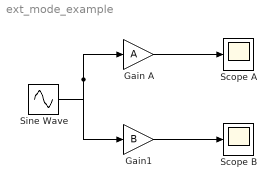
/*
 * ext_mode_example.c
 *
 * Real-Time Workshop code generation for Simulink model "ext_mode_example.mdl".
 *
 * Model Version              : 1.2
 * Real-Time Workshop version : 7.0  (R2007b)  02-Aug-2007
 * C source code generated on : Wed Jun 10 16:40:14 2009
 */

#include "ext_mode_example.h"
#include "ext_mode_example_private.h"
#include <stdio.h>
#include "ext_mode_example_dt.h"

/* Block signals (auto storage) */
BlockIO_ext_mode_example ext_mode_example_B;

/* Block states (auto storage) */
D_Work_ext_mode_example ext_mode_example_DWork;

/* Real-time model */
RT_MODEL_ext_mode_example ext_mode_example_M_;
RT_MODEL_ext_mode_example *ext_mode_example_M = &ext_mode_example_M_;

/* Model output function */
void ext_mode_example_output(int_T tid)
{
  /* local block i/o variables */
  real_T rtb_SineWave;

  /* Sin: '<Root>/Sine Wave' */
  rtb_SineWave = sin(ext_mode_example_P.SineWave_Freq *
                     ext_mode_example_M->Timing.t[0] +
                     ext_mode_example_P.SineWave_Phase) *
    ext_mode_example_P.SineWave_Amp + ext_mode_example_P.SineWave_Bias;

  /* Gain: '<Root>/Gain A' */
  ext_mode_example_B.GainA = ext_mode_example_P.GainA_Gain * rtb_SineWave;

  /* Gain: '<Root>/Gain1' */
  ext_mode_example_B.Gain1 = ext_mode_example_P.Gain1_Gain * rtb_SineWave;
  UNUSED_PARAMETER(tid);
}

/* Model update function */
void ext_mode_example_update(int_T tid)
{
  /* Update absolute time for base rate */
  if (!(++ext_mode_example_M->Timing.clockTick0))
    ++ext_mode_example_M->Timing.clockTickH0;
  ext_mode_example_M->Timing.t[0] = ext_mode_example_M->Timing.clockTick0 *
    ext_mode_example_M->Timing.stepSize0 +
    ext_mode_example_M->Timing.clockTickH0 *
    ext_mode_example_M->Timing.stepSize0 * 4294967296.0;

  {
    /* Update absolute timer for sample time: [0.1s, 0.0s] */
    if (!(++ext_mode_example_M->Timing.clockTick1))
      ++ext_mode_example_M->Timing.clockTickH1;
    ext_mode_example_M->Timing.t[1] = ext_mode_example_M->Timing.clockTick1 *
      ext_mode_example_M->Timing.stepSize1 +
      ext_mode_example_M->Timing.clockTickH1 *
      ext_mode_example_M->Timing.stepSize1 * 4294967296.0;
  }

  UNUSED_PARAMETER(tid);
}
